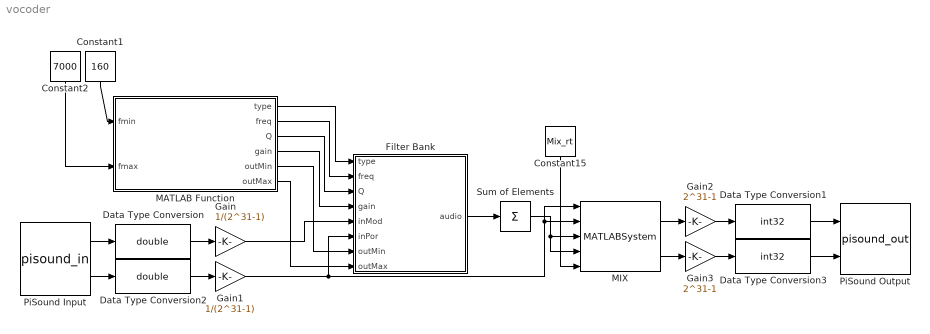
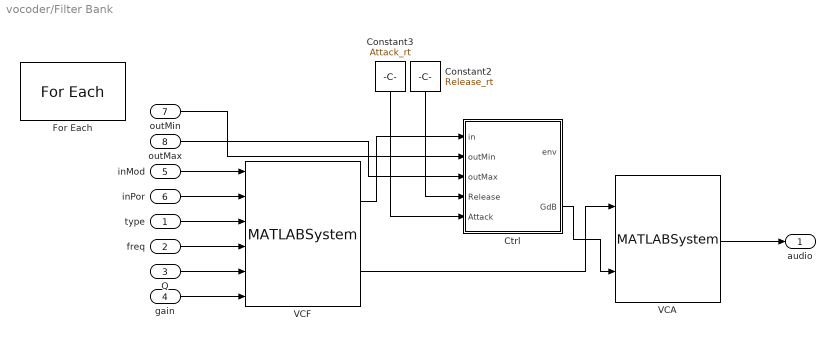
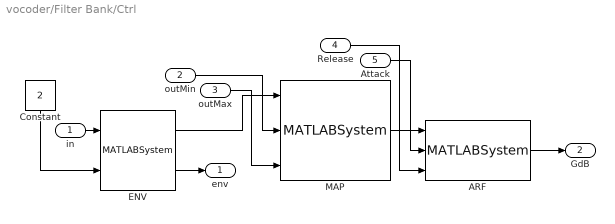
== matlab function vocoder/MATLAB Function ==
function [type,freq,Q,gain,outMin,outMax] = vocoder_params(fmin,fmax)
%#codegen
  K = int32(16);
  [type,freq,Q,gain] = fb_params(fmin,fmax,K);
  [outMin,outMax] = ctrl_params_from_freq(freq,K);
  type = type(1:K);
  freq = freq(1:K);
  Q    = Q(1:K);
  gain = gain(1:K);
end

/*
 * Academic License - for use in teaching, academic research, and meeting
 * course requirements at degree granting institutions only.  Not for
 * government, commercial, or other organizational use.
 *
 * File: vocoder.c
 *
 * Code generated for Simulink model 'vocoder'.
 *
 * Model version                  : 1.106
 * Simulink Coder version         : 25.2 (R2025b) 28-Jul-2025
 * C/C++ source code generated on : Thu Mar 26 10:08:42 2026
 *
 * Target selection: ert.tlc
 * Embedded hardware selection: Intel->x86-64 (Windows64)
 * Code generation objectives: Unspecified
 * Validation result: Not run
 */

#include "vocoder.h"
#include "rtwtypes.h"
#include <math.h>
#include "rt_nonfinite.h"
#include "vocoder_private.h"
#include <string.h>

/* Block signals (default storage) */
B_vocoder_T vocoder_B;

/* Block states (default storage) */
DW_vocoder_T vocoder_DW;

/* Real-time model */
static RT_MODEL_vocoder_T vocoder_M_;
RT_MODEL_vocoder_T *const vocoder_M = &vocoder_M_;

/* Forward declaration for local functions */
static real_T vocoder_interp_lin_table(real_T x, const real_T xp[32], const
  real_T yp[32]);
static void vocoder_filter(real_T b[3], real_T a[3], const real_T x[128], const
  real_T zi[2], real_T y[128], real_T zf[2]);

/* Function for MATLAB Function: '<Root>/MATLAB Function' */
static real_T vocoder_interp_lin_table(real_T x, const real_T xp[32], const
  real_T yp[32])
{
  real_T y;
  if (x <= xp[0]) {
    y = yp[0];
  } else if (x >= xp[31]) {
    y = yp[31];
  } else {
    int32_T i;
    boolean_T exitg1;
    y = yp[0];
    i = 0;
    exitg1 = false;
    while ((!exitg1) && (i < 31)) {
      if (x >= xp[i]) {
        real_T tmp;
        tmp = xp[i + 1];
        if (x <= tmp) {
          y = (x - xp[i]) / (tmp - xp[i]) * (yp[i + 1] - yp[i]) + yp[i];
          exitg1 = true;
        } else {
          i++;
        }
      } else {
        i++;
      }
    }
  }

  return y;
}

static void vocoder_filter(real_T b[3], real_T a[3], const real_T x[128], const
  real_T zi[2], real_T y[128], real_T zf[2])
{
  int32_T b_j;
  int32_T e_k;
  int32_T naxpy;

  /* Start for MATLABSystem: '<S1>/VCF' */
  if ((!rtIsInf(a[0])) && (!rtIsNaN(a[0])) && (!(a[0] == 0.0)) && (a[0] != 1.0))
  {
    b[0] /= a[0];
    b[1] /= a[0];
    b[2] /= a[0];
    a[1] /= a[0];
    a[2] /= a[0];
    a[0] = 1.0;
  }

  zf[0] = 0.0;
  y[0] = zi[0];
  zf[1] = 0.0;
  y[1] = zi[1];
  memset(&y[2], 0, 126U * sizeof(real_T));
  for (e_k = 0; e_k < 128; e_k++) {
    real_T as;
    int32_T y_tmp;

    /* Start for MATLABSystem: '<S1>/VCF' */
    if (128 - e_k <= 3) {
      naxpy = 128 - e_k;
    } else {
      naxpy = 3;
    }

    for (b_j = 0; b_j < naxpy; b_j++) {
      y_tmp = e_k + b_j;

      /* Start for MATLABSystem: '<S1>/VCF' */
      y[y_tmp] += x[e_k] * b[b_j];
    }

    /* Start for MATLABSystem: '<S1>/VCF' */
    if (127 - e_k <= 2) {
      naxpy = 127 - e_k;
    } else {
      naxpy = 2;
    }

    as = -y[e_k];
    for (b_j = 0; b_j < naxpy; b_j++) {
      y_tmp = (b_j + e_k) + 1;
      y[y_tmp] += a[b_j + 1] * as;
    }
  }

  for (e_k = 0; e_k < 2; e_k++) {
    for (naxpy = 0; naxpy <= e_k; naxpy++) {
      /* Start for MATLABSystem: '<S1>/VCF' */
      zf[naxpy] += b[(naxpy - e_k) + 2] * x[e_k + 126];
    }
  }

  for (e_k = 0; e_k < 2; e_k++) {
    for (naxpy = 0; naxpy <= e_k; naxpy++) {
      /* Start for MATLABSystem: '<S1>/VCF' */
      zf[naxpy] += a[(naxpy - e_k) + 2] * -y[e_k + 126];
    }
  }
}

real_T rt_powd_snf(real_T u0, real_T u1)
{
  real_T y;
  if (rtIsNaN(u0) || rtIsNaN(u1)) {
    y = (rtNaN);
  } else {
    real_T tmp;
    real_T tmp_0;
    tmp = fabs(u0);
    tmp_0 = fabs(u1);
    if (rtIsInf(u1)) {
      if (tmp == 1.0) {
        y = 1.0;
      } else if (tmp > 1.0) {
        if (u1 > 0.0) {
          y = (rtInf);
        } else {
          y = 0.0;
        }
      } else if (u1 > 0.0) {
        y = 0.0;
      } else {
        y = (rtInf);
      }
    } else if (tmp_0 == 0.0) {
      y = 1.0;
    } else if (tmp_0 == 1.0) {
      if (u1 > 0.0) {
        y = u0;
      } else {
        y = 1.0 / u0;
      }
    } else if (u1 == 2.0) {
      y = u0 * u0;
    } else if ((u1 == 0.5) && (u0 >= 0.0)) {
      y = sqrt(u0);
    } else if ((u0 < 0.0) && (u1 > floor(u1))) {
      y = (rtNaN);
    } else {
      y = pow(u0, u1);
    }
  }

  return y;
}

/* Model step function */
void vocoder_step(void)
{
  real_T rtb_Gain[128];
  real_T rtb_Gain1[128];
  real_T rtb_MIX_o1_0[128];
  real_T rtb_MIX_o2_0[128];
  real_T rtb_VCF_o1_0[128];
  real_T tmp[32];
  real_T tmp_0[32];
  real_T tmp_1[32];
  real_T tmp_2[32];
  real_T FcRefScaled[16];
  real_T rtb_Q[16];
  real_T rtb_freq[16];
  real_T rtb_gain[16];
  real_T rtb_outMax[16];
  real_T rtb_outMin[16];
  real_T fk;
  real_T fmin_hz;
  real_T gw1_;
  real_T gw2_;
  real_T logOutMax;
  real_T logOutMin;
  real_T lx1;
  real_T rtb_Gain1_0;
  real_T rtb_Gain_0;
  int32_T ForEach_itr;
  int32_T i;
  uint8_T rtb_type[16];
  uint8_T rtb_type_0;
  static const int16_T b[16] = { 50, 68, 91, 123, 166, 224, 302, 407, 548, 738,
    995, 1340, 1800, 2420, 3250, 4360 };

  static const real_T yRef[16] = { 0.0, 0.0, 0.0, 0.0, 0.5, 0.5, 1.0, 1.0, 1.5,
    1.5, 2.0, 2.5, 3.0, 3.5, 4.0, 4.5 };

  real_T tmp_4[3];
  real_T tmp_5[3];
  real_T tmp_3[2];
  boolean_T exitg1;

  /* S-Function (pisound_in): '<Root>/PiSound Input' */

  /* Level2 S-Function Block: '<Root>/PiSound Input' (pisound_in) */
  {
    SimStruct *rts = vocoder_M->childSfunctions[0];
    sfcnOutputs(rts,0);
  }

  /* Gain: '<Root>/Gain1' incorporates:
   *  DataTypeConversion: '<Root>/Data Type Conversion2'
   */
  for (i = 0; i < 128; i++) {
    rtb_Gain1[i] = vocoder_P.Gain1_Gain * (real_T)vocoder_B.PiSoundInput_o2[i];
  }

  /* End of Gain: '<Root>/Gain1' */

  /* MATLAB Function: '<Root>/MATLAB Function' incorporates:
   *  Constant: '<Root>/Constant1'
   *  Constant: '<Root>/Constant2'
   */
  fmin_hz = vocoder_P.Constant1_Value;
  logOutMax = vocoder_P.Constant2_Value;
  if (vocoder_P.Constant1_Value <= 0.0) {
    fmin_hz = 50.0;
  }

  if (vocoder_P.Constant2_Value <= fmin_hz) {
    logOutMax = 4360.0;
  }

  logOutMin = log(fmin_hz);
  logOutMax = log(logOutMax);
  for (i = 0; i < 16; i++) {
    FcRefScaled[i] = exp((log(b[i]) - 3.912023005428146) / 4.4682043309149329 *
                         (logOutMax - logOutMin) + logOutMin);
  }

  for (i = 0; i < 16; i++) {
    fk = exp((((real_T)i + 1.0) - 1.0) / 15.0 * (logOutMax - logOutMin) +
             logOutMin);
    rtb_type[i] = 3U;
    rtb_freq[i] = fk;
    rtb_Q[i] = 7.0;
    if (fk <= FcRefScaled[0]) {
      rtb_gain[i] = 0.0;
    } else if (fk >= FcRefScaled[15]) {
      rtb_gain[i] = 4.5;
    } else {
      rtb_gain[i] = 0.0;
      ForEach_itr = 0;
      exitg1 = false;
      while ((!exitg1) && (ForEach_itr < 15)) {
        if (fk >= FcRefScaled[ForEach_itr]) {
          fmin_hz = FcRefScaled[ForEach_itr + 1];
          if (fk <= fmin_hz) {
            lx1 = log(FcRefScaled[ForEach_itr]);
            rtb_gain[i] = (log(fk) - lx1) / (log(fmin_hz) - lx1) *
              (yRef[ForEach_itr + 1] - yRef[ForEach_itr]) + yRef[ForEach_itr];
            exitg1 = true;
          } else {
            ForEach_itr++;
          }
        } else {
          ForEach_itr++;
        }
      }
    }
  }

  rtb_type[15] = 2U;
  rtb_freq[15] /= sqrt(exp((logOutMax - logOutMin) / 15.0));
  rtb_Q[15] = 0.70710678118654746;
  rtb_gain[15] += 2.0;
  logOutMax = fmax(rtb_freq[0], 1.0);
  fmin_hz = log(logOutMax);
  logOutMax = log(fmax(rtb_freq[15], logOutMax + 1.0E-12)) - fmin_hz;
  if (fabs(logOutMax) < 1.0E-12) {
    for (i = 0; i < 16; i++) {
      FcRefScaled[i] = (((real_T)i + 1.0) - 1.0) / 15.0;
    }
  } else {
    for (i = 0; i < 16; i++) {
      FcRefScaled[i] = (log(fmax(rtb_freq[i], 1.0)) - fmin_hz) / logOutMax;
    }
  }

  for (i = 0; i < 32; i++) {
    fmin_hz = 0.032258064516129031 * (real_T)i;
    tmp[i] = fmin_hz;
    tmp_0[i] = -60.0;
    tmp_1[i] = fmin_hz;
    tmp_2[i] = 0.0;
  }

  for (i = 0; i < 16; i++) {
    fmin_hz = FcRefScaled[i];
    rtb_outMin[i] = vocoder_interp_lin_table(fmin_hz, tmp, tmp_0);
    rtb_outMax[i] = vocoder_interp_lin_table(fmin_hz, tmp_1, tmp_2);
  }

  /* End of MATLAB Function: '<Root>/MATLAB Function' */

  /* Gain: '<Root>/Gain' incorporates:
   *  DataTypeConversion: '<Root>/Data Type Conversion'
   */
  for (i = 0; i < 128; i++) {
    rtb_Gain[i] = vocoder_P.Gain_Gain * (real_T)vocoder_B.PiSoundInput_o1[i];
  }

  /* End of Gain: '<Root>/Gain' */

  /* Outputs for Iterator SubSystem: '<Root>/Filter Bank' incorporates:
   *  ForEach: '<S1>/For Each'
   */
  for (ForEach_itr = 0; ForEach_itr < 16; ForEach_itr++) {
    /* ForEachSliceSelector generated from: '<S1>/type' */
    /*  acepta double y castea */
    rtb_type_0 = rtb_type[ForEach_itr];

    /* ForEachSliceSelector generated from: '<S1>/freq' */
    logOutMax = rtb_freq[ForEach_itr];

    /* ForEachSliceSelector generated from: '<S1>/Q' */
    logOutMin = rtb_Q[ForEach_itr];

    /* ForEachSliceSelector generated from: '<S1>/gain' */
    fk = rtb_gain[ForEach_itr];

    /* MATLABSystem: '<S1>/VCF' incorporates:
     *  ForEachSliceSelector generated from: '<S1>/Q'
     *  ForEachSliceSelector generated from: '<S1>/freq'
     *  ForEachSliceSelector generated from: '<S1>/gain'
     *  ForEachSliceSelector generated from: '<S1>/type'
     */
    if ((rtb_type_0 != vocoder_DW.CoreSubsys[ForEach_itr].obj.lastType) ||
        (logOutMax != vocoder_DW.CoreSubsys[ForEach_itr].obj.lastFreq) ||
        (logOutMin != vocoder_DW.CoreSubsys[ForEach_itr].obj.lastQ) || (fk !=
         vocoder_DW.CoreSubsys[ForEach_itr].obj.lastGain)) {
      fmin_hz = logOutMax;
      if (rtIsInf(logOutMax) || rtIsNaN(logOutMax)) {
        fmin_hz = 1000.0;
      }

      /*  límites prácticos */
      if (fmin_hz < 0.1) {
        fmin_hz = 0.1;
      }

      if (fmin_hz > 23952.0) {
        fmin_hz = 23952.0;
      }

      fmin_hz = fmin_hz / 48000.0 * 6.2831853071795862;
      if (rtb_type_0 == 2) {
        /*  highpass */
        /* Cálculo de los coefifientes de un Filtro Paso-Alto de 2º orden */
        /* Parámetos de entrada:  */
        /* wo = frecuencia de corte a -3dB (en radianes) */
        /* Parametros de salida: */
        /* Coeficientes [b,a] de un filtro IIR de segundo orden */
        lx1 = cos(fmin_hz);

        /*  Coeficientes del ecualizador */
        gw1_ = 1.4142135623730951 * sin(fmin_hz);

        /* Normalización de coeficientes */
        /*  */
        /* fvtool(b,a); */
        fmin_hz = (lx1 + 1.0) / (gw1_ + 2.0);
        vocoder_DW.CoreSubsys[ForEach_itr].obj.b[0] = fmin_hz;
        vocoder_DW.CoreSubsys[ForEach_itr].obj.b[1] = (lx1 + 1.0) * -2.0 / (gw1_
          + 2.0);
        vocoder_DW.CoreSubsys[ForEach_itr].obj.b[2] = fmin_hz;
        vocoder_DW.CoreSubsys[ForEach_itr].obj.a[0] = (gw1_ + 2.0) / (gw1_ + 2.0);
        vocoder_DW.CoreSubsys[ForEach_itr].obj.a[1] = -4.0 * lx1 / (gw1_ + 2.0);
        vocoder_DW.CoreSubsys[ForEach_itr].obj.a[2] = (2.0 - gw1_) / (gw1_ + 2.0);
      } else {
        /*  bandpass (0 dB peak) */
        /* Cálculo de los coefifientes de un Filtro Paso-Banda 2º orden */
        /* Parámetos de entrada:  */
        /* wo = frecuencia central (en radianes) */
        /* Q = factor de calidad */
        /*  */
        /* Parametros de salida: */
        /* Coeficientes [b,a] de un filtro IIR de segundo orden */
        lx1 = sin(fmin_hz) / logOutMin;

        /*  <-- Q aquí */
        /*  Coeficientes del ecualizador */
        /* Normalización de coeficientes */
        /* fvtool(b,a); */
        vocoder_DW.CoreSubsys[ForEach_itr].obj.b[0] = lx1 / (lx1 + 2.0);
        vocoder_DW.CoreSubsys[ForEach_itr].obj.b[1] = 0.0 / (lx1 + 2.0);
        vocoder_DW.CoreSubsys[ForEach_itr].obj.b[2] = -lx1 / (lx1 + 2.0);
        vocoder_DW.CoreSubsys[ForEach_itr].obj.a[0] = (lx1 + 2.0) / (lx1 + 2.0);
        vocoder_DW.CoreSubsys[ForEach_itr].obj.a[1] = -4.0 * cos(fmin_hz) / (lx1
          + 2.0);
        vocoder_DW.CoreSubsys[ForEach_itr].obj.a[2] = (2.0 - lx1) / (lx1 + 2.0);
      }

      vocoder_DW.CoreSubsys[ForEach_itr].obj.lastType = rtb_type_0;
      vocoder_DW.CoreSubsys[ForEach_itr].obj.lastFreq = logOutMax;
      vocoder_DW.CoreSubsys[ForEach_itr].obj.lastQ = logOutMin;
      vocoder_DW.CoreSubsys[ForEach_itr].obj.lastGain = fk;
    }

    /*  bp es logical */
    for (i = 0; i < 2; i++) {
      tmp_3[i] = vocoder_DW.CoreSubsys[ForEach_itr].obj.zL[i];
    }

    for (i = 0; i < 3; i++) {
      tmp_4[i] = vocoder_DW.CoreSubsys[ForEach_itr].obj.b[i];
    }

    for (i = 0; i < 3; i++) {
      tmp_5[i] = vocoder_DW.CoreSubsys[ForEach_itr].obj.a[i];
    }

    vocoder_filter(tmp_4, tmp_5, rtb_Gain, tmp_3, rtb_VCF_o1_0,
                   vocoder_DW.CoreSubsys[ForEach_itr].obj.zL);
    for (i = 0; i < 2; i++) {
      tmp_3[i] = vocoder_DW.CoreSubsys[ForEach_itr].obj.zR[i];
    }

    for (i = 0; i < 3; i++) {
      tmp_4[i] = vocoder_DW.CoreSubsys[ForEach_itr].obj.b[i];
    }

    for (i = 0; i < 3; i++) {
      tmp_5[i] = vocoder_DW.CoreSubsys[ForEach_itr].obj.a[i];
    }

    vocoder_filter(tmp_4, tmp_5, rtb_Gain1, tmp_3, rtb_MIX_o1_0,
                   vocoder_DW.CoreSubsys[ForEach_itr].obj.zR);

    /* MATLABSystem: '<S3>/ENV' incorporates:
     *  Constant: '<S3>/Constant'
     *  MATLABSystem: '<S1>/VCF'
     */
    if (vocoder_DW.CoreSubsys[ForEach_itr].obj_d.ModeDefault !=
        vocoder_P.CoreSubsys.ENV_ModeDefault) {
      vocoder_DW.CoreSubsys[ForEach_itr].obj_d.ModeDefault =
        vocoder_P.CoreSubsys.ENV_ModeDefault;
    }

    if (vocoder_DW.CoreSubsys[ForEach_itr].obj_d.Eps !=
        vocoder_P.CoreSubsys.ENV_Eps) {
      vocoder_DW.CoreSubsys[ForEach_itr].obj_d.Eps =
        vocoder_P.CoreSubsys.ENV_Eps;
    }

    if (vocoder_DW.CoreSubsys[ForEach_itr].obj_d.TauRMS !=
        vocoder_P.CoreSubsys.ENV_TauRMS) {
      vocoder_DW.CoreSubsys[ForEach_itr].obj_d.TauRMS =
        vocoder_P.CoreSubsys.ENV_TauRMS;
    }

    if (vocoder_P.CoreSubsys.Constant_Value == 1) {
      /*  -------- PEAK (instantáneo) -------- */
      for (i = 0; i < 128; i++) {
        rtb_MIX_o2_0[i] = log10(fabs(rtb_VCF_o1_0[i]) +
          vocoder_DW.CoreSubsys[ForEach_itr].obj_d.Eps) * 20.0;
      }
    } else if (vocoder_P.CoreSubsys.Constant_Value == 2) {
      /*  -------- RMS exponencial (real) -------- */
      fmin_hz = exp(-1.0 / (fmax(vocoder_DW.CoreSubsys[ForEach_itr].obj_d.TauRMS,
        1.0E-6) * 48000.0));
      for (i = 0; i < 128; i++) {
        /* MATLABSystem: '<S1>/VCF' */
        logOutMax = rtb_VCF_o1_0[i];
        logOutMax = (1.0 - fmin_hz) * (logOutMax * logOutMax) + fmin_hz *
          vocoder_DW.CoreSubsys[ForEach_itr].obj_d.e_prev;
        vocoder_DW.CoreSubsys[ForEach_itr].obj_d.e_prev = logOutMax;
        rtb_MIX_o2_0[i] = log10(sqrt(logOutMax +
          vocoder_DW.CoreSubsys[ForEach_itr].obj_d.Eps)) * 20.0;
      }
    } else {
      for (i = 0; i < 128; i++) {
        rtb_MIX_o2_0[i] = log10(fabs(rtb_VCF_o1_0[i]) +
          vocoder_DW.CoreSubsys[ForEach_itr].obj_d.Eps) * 20.0;
      }
    }

    /* MATLABSystem: '<S3>/MAP' incorporates:
     *  ForEachSliceSelector generated from: '<S1>/outMax'
     *  ForEachSliceSelector generated from: '<S1>/outMin'
     *  MATLABSystem: '<S3>/ENV'
     */
    if (vocoder_DW.CoreSubsys[ForEach_itr].obj_e.Mode !=
        vocoder_P.CoreSubsys.MAP_Mode) {
      vocoder_DW.CoreSubsys[ForEach_itr].obj_e.Mode =
        vocoder_P.CoreSubsys.MAP_Mode;
    }

    if (vocoder_DW.CoreSubsys[ForEach_itr].obj_e.Offset !=
        vocoder_P.CoreSubsys.MAP_Offset) {
      vocoder_DW.CoreSubsys[ForEach_itr].obj_e.Offset =
        vocoder_P.CoreSubsys.MAP_Offset;
    }

    if (vocoder_DW.CoreSubsys[ForEach_itr].obj_e.Threshold !=
        vocoder_P.CoreSubsys.MAP_Threshold) {
      vocoder_DW.CoreSubsys[ForEach_itr].obj_e.Threshold =
        vocoder_P.CoreSubsys.MAP_Threshold;
    }

    if (vocoder_DW.CoreSubsys[ForEach_itr].obj_e.Slope !=
        vocoder_P.CoreSubsys.MAP_Slope) {
      vocoder_DW.CoreSubsys[ForEach_itr].obj_e.Slope =
        vocoder_P.CoreSubsys.MAP_Slope;
    }

    switch (vocoder_DW.CoreSubsys[ForEach_itr].obj_e.Mode) {
     case 1U:
      /* ForEachSliceSelector generated from: '<S1>/outMin' */
      /*  vocoder_env_db con threshold+slope */
      logOutMax = rtb_outMin[ForEach_itr];
      for (i = 0; i < 128; i++) {
        rtb_MIX_o2_0[i] = fmin(fmax(fmax(rtb_MIX_o2_0[i] -
          vocoder_DW.CoreSubsys[ForEach_itr].obj_e.Threshold, 0.0) *
          vocoder_DW.CoreSubsys[ForEach_itr].obj_e.Slope + logOutMax,
          rtb_outMin[ForEach_itr]), rtb_outMax[ForEach_itr]);
      }
      break;

     case 2U:
      /* ForEachSliceSelector generated from: '<S1>/outMin' */
      /*  dB offset + clip */
      logOutMax = rtb_outMin[ForEach_itr];

      /* ForEachSliceSelector generated from: '<S1>/outMax' */
      logOutMin = rtb_outMax[ForEach_itr];
      fmin_hz = fmin(logOutMax, logOutMin);
      logOutMax = fmax(logOutMax, logOutMin);
      for (i = 0; i < 128; i++) {
        rtb_MIX_o2_0[i] = fmin(fmax(rtb_MIX_o2_0[i] +
          vocoder_DW.CoreSubsys[ForEach_itr].obj_e.Offset, fmin_hz), logOutMax);
      }
      break;
    }

    /* MATLABSystem: '<S3>/ARF' incorporates:
     *  Constant: '<S1>/Constant2'
     *  Constant: '<S1>/Constant3'
     *  MATLABSystem: '<S3>/MAP'
     */
    /*  bypass del suavizado */
    /*  tiempos válidos */
    fmin_hz = exp(-1.0 / (fmax(vocoder_P.Attack_rt, 1.0E-6) * 48000.0));
    logOutMax = exp(-1.0 / (fmax(vocoder_P.Release_rt, 1.0E-6) * 48000.0));
    logOutMin = vocoder_DW.CoreSubsys[ForEach_itr].obj_f.gPrev_dB;
    for (i = 0; i < 128; i++) {
      /* MATLABSystem: '<S3>/MAP' */
      fk = rtb_MIX_o2_0[i];
      if (fk < logOutMin) {
        /*  más reducción de ganancia -> attack */
        logOutMin = (1.0 - fmin_hz) * fk + fmin_hz * logOutMin;
      } else {
        /*  menos reducción de ganancia -> release */
        logOutMin = (1.0 - logOutMax) * fk + logOutMax * logOutMin;
      }

      rtb_VCF_o1_0[i] = logOutMin;
    }

    vocoder_DW.CoreSubsys[ForEach_itr].obj_f.gPrev_dB = logOutMin;

    /* End of MATLABSystem: '<S3>/ARF' */

    /* MATLABSystem: '<S1>/VCA' */
    if (vocoder_DW.CoreSubsys[ForEach_itr].obj_dx.Mode !=
        vocoder_P.CoreSubsys.VCA_Mode) {
      vocoder_DW.CoreSubsys[ForEach_itr].obj_dx.Mode =
        vocoder_P.CoreSubsys.VCA_Mode;
    }

    if (vocoder_DW.CoreSubsys[ForEach_itr].obj_dx.ForceGainEnable !=
        vocoder_P.CoreSubsys.VCA_ForceGainEnable) {
      vocoder_DW.CoreSubsys[ForEach_itr].obj_dx.ForceGainEnable =
        vocoder_P.CoreSubsys.VCA_ForceGainEnable;
    }

    if (vocoder_DW.CoreSubsys[ForEach_itr].obj_dx.ForceGainValue !=
        vocoder_P.CoreSubsys.VCA_ForceGainValue) {
      vocoder_DW.CoreSubsys[ForEach_itr].obj_dx.ForceGainValue =
        vocoder_P.CoreSubsys.VCA_ForceGainValue;
    }

    /*  ------------------------- */
    /*  INTERFAZ */
    /*  ------------------------- */
    /*  bp es logical */
    if (vocoder_DW.CoreSubsys[ForEach_itr].obj_dx.ForceGainEnable != 0) {
      for (i = 0; i < 128; i++) {
        rtb_VCF_o1_0[i] = vocoder_DW.CoreSubsys[ForEach_itr].
          obj_dx.ForceGainValue;
      }
    }

    /*  --- convertir si está en dB --- */
    if (vocoder_DW.CoreSubsys[ForEach_itr].obj_dx.Mode == 1) {
      for (i = 0; i < 128; i++) {
        rtb_VCF_o1_0[i] = rt_powd_snf(10.0, rtb_VCF_o1_0[i] / 20.0);
      }
    }

    /* ForEachSliceAssignment generated from: '<S1>/audio' incorporates:
     *  MATLABSystem: '<S1>/VCA'
     *  MATLABSystem: '<S1>/VCF'
     */
    for (i = 0; i < 128; i++) {
      vocoder_B.ImpAsg_InsertedFor_audio_at[i + (ForEach_itr << 7)] =
        rtb_VCF_o1_0[i] * rtb_MIX_o1_0[i];
    }

    /* End of ForEachSliceAssignment generated from: '<S1>/audio' */
  }

  /* End of Outputs for SubSystem: '<Root>/Filter Bank' */

  /* Sum: '<Root>/Sum of Elements' incorporates:
   *  ForEachSliceAssignment generated from: '<S1>/audio'
   */
  for (i = 0; i < 128; i++) {
    fmin_hz = -0.0;
    for (ForEach_itr = 0; ForEach_itr < 16; ForEach_itr++) {
      fmin_hz += vocoder_B.ImpAsg_InsertedFor_audio_at[(ForEach_itr << 7) + i];
    }

    rtb_Gain[i] = fmin_hz;
  }

  /* MATLABSystem: '<Root>/MIX' incorporates:
   *  Constant: '<Root>/Constant15'
   */
  if (vocoder_DW.obj.SmoothTime != vocoder_P.MIX_SmoothTime) {
    vocoder_DW.obj.SmoothTime = vocoder_P.MIX_SmoothTime;
  }

  if (vocoder_DW.obj.IndepInDB != vocoder_P.MIX_IndepInDB) {
    vocoder_DW.obj.IndepInDB = vocoder_P.MIX_IndepInDB;
  }

  /*  inL,inR,wetL,wetR,p1 (+p2 si Mode=2) */
  /*  Mode 3: crossfade por muestra (p1 puede ser [N x 1]) */
  /*  dummy */
  logOutMax = fmin(fmax(vocoder_P.Mix_rt, 0.0), 1.0);
  logOutMin = vocoder_DW.obj.a;
  fk = vocoder_DW.obj.gd1;
  lx1 = vocoder_DW.obj.gd2;
  gw1_ = vocoder_DW.obj.gw1;
  gw2_ = vocoder_DW.obj.gw2;

  /*  más robusto que obj.N */
  for (i = 0; i < 128; i++) {
    fk += ((1.0 - logOutMax) - fk) * logOutMin;
    gw1_ += (logOutMax - gw1_) * logOutMin;
    rtb_Gain1_0 = rtb_Gain1[i];

    /* Sum: '<Root>/Sum of Elements' */
    rtb_Gain_0 = rtb_Gain[i];
    lx1 += ((1.0 - logOutMax) - lx1) * logOutMin;
    gw2_ += (logOutMax - gw2_) * logOutMin;

    /* DataTypeConversion: '<Root>/Data Type Conversion1' incorporates:
     *  Gain: '<Root>/Gain2'
     *  Sum: '<Root>/Sum of Elements'
     */
    fmin_hz = floor((fk * rtb_Gain1_0 + gw1_ * rtb_Gain_0) *
                    vocoder_P.Gain2_Gain);
    if (rtIsNaN(fmin_hz) || rtIsInf(fmin_hz)) {
      fmin_hz = 0.0;
    } else {
      fmin_hz = fmod(fmin_hz, 4.294967296E+9);
    }

    /* DataTypeConversion: '<Root>/Data Type Conversion1' */
    vocoder_B.DataTypeConversion1[i] = fmin_hz < 0.0 ? -(int32_T)(uint32_T)
      -fmin_hz : (int32_T)(uint32_T)fmin_hz;

    /* DataTypeConversion: '<Root>/Data Type Conversion3' incorporates:
     *  Gain: '<Root>/Gain3'
     *  Sum: '<Root>/Sum of Elements'
     */
    fmin_hz = floor((lx1 * rtb_Gain1_0 + gw2_ * rtb_Gain_0) *
                    vocoder_P.Gain3_Gain);
    if (rtIsNaN(fmin_hz) || rtIsInf(fmin_hz)) {
      fmin_hz = 0.0;
    } else {
      fmin_hz = fmod(fmin_hz, 4.294967296E+9);
    }

    /* DataTypeConversion: '<Root>/Data Type Conversion3' */
    vocoder_B.DataTypeConversion3[i] = fmin_hz < 0.0 ? -(int32_T)(uint32_T)
      -fmin_hz : (int32_T)(uint32_T)fmin_hz;
  }

  vocoder_DW.obj.gd1 = fk;
  vocoder_DW.obj.gd2 = lx1;
  vocoder_DW.obj.gw1 = gw1_;
  vocoder_DW.obj.gw2 = gw2_;

  /* End of MATLABSystem: '<Root>/MIX' */

  /* S-Function (pisound_out): '<Root>/PiSound Output' */

  /* Level2 S-Function Block: '<Root>/PiSound Output' (pisound_out) */
  {
    SimStruct *rts = vocoder_M->childSfunctions[1];
    sfcnOutputs(rts,0);
  }

  /* Update absolute time for base rate */
  /* The "clockTick0" counts the number of times the code of this task has
   * been executed. The absolute time is the multiplication of "clockTick0"
   * and "Timing.stepSize0". Size of "clockTick0" ensures timer will not
   * overflow during the application lifespan selected.
   */
  vocoder_M->Timing.t[0] =
    ((time_T)(++vocoder_M->Timing.clockTick0)) * vocoder_M->Timing.stepSize0;
}
